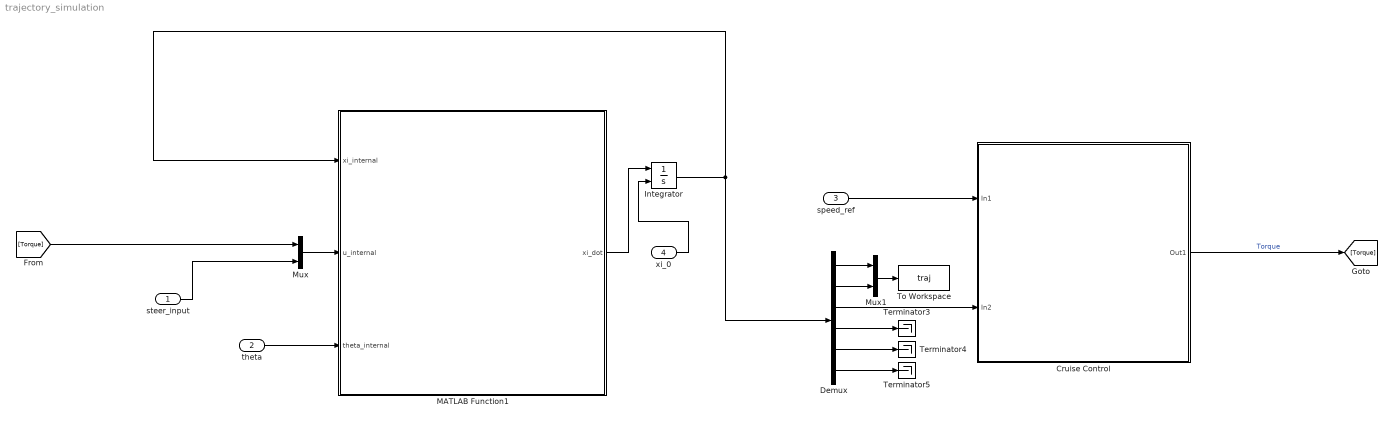
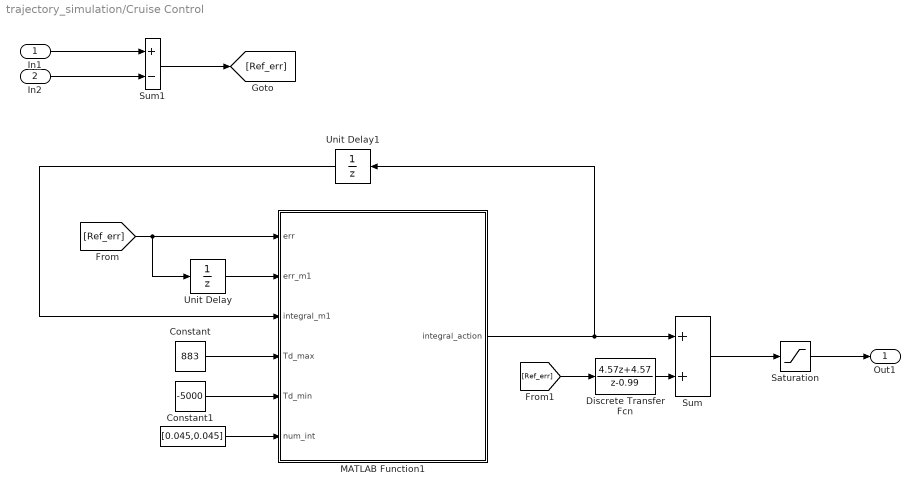
== matlab function trajectory_simulation/Cruise Control/MATLAB Function1 ==
function integral_action = integrator_anti_wu(err, err_m1, integral_m1, Td_max, Td_min, num_int)

integral_action = min(Td_max, max(Td_min, integral_m1+num_int'*[err;err_m1]));

== matlab function trajectory_simulation/MATLAB Function1 ==
function xi_dot = vehicle(xi_internal, u_internal, theta_internal)
% simulation, time has to be the fist input

%% Read states
X = xi_internal(1,1);
Y = xi_internal(2,1);
Ux = xi_internal(3,1);
beta = xi_internal(4,1);
psi = xi_internal(5,1);
r = xi_internal(6,1);

%% Read Inputs

Td_internal = u_internal(1,1);
delta_internal = u_internal(2,1);

%% Read Parameters

m = theta_internal(1,1);
Jz = theta_internal(2,1);
a = theta_internal(3,1);
b = theta_internal(4,1);
Cf = theta_internal(5,1);
Cr = theta_internal(6,1);
rw = theta_internal(7,1);
mu = theta_internal(8,1);
Af = theta_internal(9,1);
Al = theta_internal(10,1);
Cx = theta_internal(11,1);
Rr = theta_internal(12,1);
rho = theta_internal(13,1);
g = 9.81;

%% Equations

Uy = tan(beta)*Ux;
alfa_f = atan2((Uy + a*r),Ux) - delta_internal;
alfa_r = atan2((Uy - b*r),Ux);

F_z_f = m * g * b / (a+b);
F_z_r = m * g * a / (a+b);

z_f = tan(alfa_f);
z_r = tan(alfa_r);

elem1 = mu*F_z_f;
elem21 = - mu*F_z_f;
elem22 = - Cf*z_f + (Cf^2*abs(z_f)*z_f)/(3*mu*F_z_f) - (Cf^3*z_f^3)/(27*mu^2*F_z_f^2);
elem2 = max(elem21,elem22);
F_y_f = min(elem1, elem2);

elem1 = mu*F_z_r;
elem21 = - mu*F_z_r;
elem22 = - Cr*z_r + (Cr^2*abs(z_r)*z_r)/(3*mu*F_z_r) - (Cr^3*z_r^3)/(27*mu^2*F_z_r^2);
elem2 = max(elem21,elem22);
F_y_r = min(elem1,elem2);

F_x = Td_internal/rw;

F_r = Rr*Ux;
F_x_d = 0.5*rho*Af*Cx*Ux^2;

%% Output
xi_dot = zeros(6,1);
xi_dot(1,1) = Ux*cos(psi) - Uy*sin(psi);
xi_dot(2,1) = Ux*sin(psi)+ Uy*cos(psi);
xi_dot(3,1) = 1/m * ((F_x - F_y_f*sin(delta_internal))-F_r-F_x_d);
xi_dot(4,1) = 1/(m*Ux) * (F_y_f*cos(delta_internal)+F_y_r) - r;
xi_dot(5,1) = r;
xi_dot(6,1) = 1/Jz * (a*F_y_f*cos(delta_internal) - b* F_y_r);
% Forces = zeros(3,1);
% Forces(1,1) = F_y_f;
% Forces(2,1) = F_y_r;
% Forces(3,1) = F_x;

end

/*
 * Academic License - for use in teaching, academic research, and meeting
 * course requirements at degree granting institutions only.  Not for
 * government, commercial, or other organizational use.
 *
 * File: trajectory_simulation.c
 *
 * Code generated for Simulink model 'trajectory_simulation'.
 *
 * Model version                  : 1.48
 * Simulink Coder version         : 9.0 (R2018b) 24-May-2018
 * C/C++ source code generated on : Thu Aug 29 16:47:17 2019
 *
 * Target selection: ert.tlc
 * Embedded hardware selection: Intel->x86-64 (Windows64)
 * Code generation objectives:
 *    1. Execution efficiency
 *    2. RAM efficiency
 * Validation result: Not run
 */

#include "trajectory_simulation.h"
#define NumBitsPerChar                 8U

/* Private macros used by the generated code to access rtModel */
#ifndef rtmSetFirstInitCond
# define rtmSetFirstInitCond(rtm, val) ((rtm)->Timing.firstInitCondFlag = (val))
#endif

#ifndef rtmIsFirstInitCond
# define rtmIsFirstInitCond(rtm)       ((rtm)->Timing.firstInitCondFlag)
#endif

#ifndef rtmIsMajorTimeStep
# define rtmIsMajorTimeStep(rtm)       (((rtm)->Timing.simTimeStep) == MAJOR_TIME_STEP)
#endif

#ifndef rtmIsMinorTimeStep
# define rtmIsMinorTimeStep(rtm)       (((rtm)->Timing.simTimeStep) == MINOR_TIME_STEP)
#endif

#ifndef rtmSetTPtr
# define rtmSetTPtr(rtm, val)          ((rtm)->Timing.t = (val))
#endif

/* Continuous states */
X rtX;

/* Block signals and states (default storage) */
DW rtDW;

/* Real-time model */
RT_MODEL rtM_;
RT_MODEL *const rtM = &rtM_;
extern real_T rt_atan2d_snf(real_T u0, real_T u1);
extern real_T rt_powd_snf(real_T u0, real_T u1);

/* private model entry point functions */
extern void trajectory_simulation_derivatives(real_T arg_steer_input, real_T
  arg_theta[13], real_T arg_speed_ref, real_T arg_xi_0[6]);
extern real_T rtGetInf(void);
extern real32_T rtGetInfF(void);
extern real_T rtGetMinusInf(void);
extern real32_T rtGetMinusInfF(void);
extern real_T rtGetNaN(void);
extern real32_T rtGetNaNF(void);

/*===========*
 * Constants *
 *===========*/
#define RT_PI                          3.14159265358979323846
#define RT_PIF                         3.1415927F
#define RT_LN_10                       2.30258509299404568402
#define RT_LN_10F                      2.3025851F
#define RT_LOG10E                      0.43429448190325182765
#define RT_LOG10EF                     0.43429449F
#define RT_E                           2.7182818284590452354
#define RT_EF                          2.7182817F

/*
 * UNUSED_PARAMETER(x)
 *   Used to specify that a function parameter (argument) is required but not
 *   accessed by the function body.
 */
#ifndef UNUSED_PARAMETER
# if defined(__LCC__)
#   define UNUSED_PARAMETER(x)                                   /* do nothing */
# else

/*
 * This is the semi-ANSI standard way of indicating that an
 * unused function parameter is required.
 */
#   define UNUSED_PARAMETER(x)         (void) (x)
# endif
#endif

extern real_T rtInf;
extern real_T rtMinusInf;
extern real_T rtNaN;
extern real32_T rtInfF;
extern real32_T rtMinusInfF;
extern real32_T rtNaNF;
extern void rt_InitInfAndNaN(size_t realSize);
extern boolean_T rtIsInf(real_T value);
extern boolean_T rtIsInfF(real32_T value);
extern boolean_T rtIsNaN(real_T value);
extern boolean_T rtIsNaNF(real32_T value);
typedef struct {
  struct {
    uint32_T wordH;
    uint32_T wordL;
  } words;
} BigEndianIEEEDouble;

typedef struct {
  struct {
    uint32_T wordL;
    uint32_T wordH;
  } words;
} LittleEndianIEEEDouble;

typedef struct {
  union {
    real32_T wordLreal;
    uint32_T wordLuint;
  } wordL;
} IEEESingle;

real_T rtInf;
real_T rtMinusInf;
real_T rtNaN;
real32_T rtInfF;
real32_T rtMinusInfF;
real32_T rtNaNF;

/*
 * Initialize rtInf needed by the generated code.
 * Inf is initialized as non-signaling. Assumes IEEE.
 */
real_T rtGetInf(void)
{
  size_t bitsPerReal = sizeof(real_T) * (NumBitsPerChar);
  real_T inf = 0.0;
  if (bitsPerReal == 32U) {
    inf = rtGetInfF();
  } else {
    union {
      LittleEndianIEEEDouble bitVal;
      real_T fltVal;
    } tmpVal;

    tmpVal.bitVal.words.wordH = 0x7FF00000U;
    tmpVal.bitVal.words.wordL = 0x00000000U;
    inf = tmpVal.fltVal;
  }

  return inf;
}

/*
 * Initialize rtInfF needed by the generated code.
 * Inf is initialized as non-signaling. Assumes IEEE.
 */
real32_T rtGetInfF(void)
{
  IEEESingle infF;
  infF.wordL.wordLuint = 0x7F800000U;
  return infF.wordL.wordLreal;
}

/*
 * Initialize rtMinusInf needed by the generated code.
 * Inf is initialized as non-signaling. Assumes IEEE.
 */
real_T rtGetMinusInf(void)
{
  size_t bitsPerReal = sizeof(real_T) * (NumBitsPerChar);
  real_T minf = 0.0;
  if (bitsPerReal == 32U) {
    minf = rtGetMinusInfF();
  } else {
    union {
      LittleEndianIEEEDouble bitVal;
      real_T fltVal;
    } tmpVal;

    tmpVal.bitVal.words.wordH = 0xFFF00000U;
    tmpVal.bitVal.words.wordL = 0x00000000U;
    minf = tmpVal.fltVal;
  }

  return minf;
}

/*
 * Initialize rtMinusInfF needed by the generated code.
 * Inf is initialized as non-signaling. Assumes IEEE.
 */
real32_T rtGetMinusInfF(void)
{
  IEEESingle minfF;
  minfF.wordL.wordLuint = 0xFF800000U;
  return minfF.wordL.wordLreal;
}

/*
 * Initialize rtNaN needed by the generated code.
 * NaN is initialized as non-signaling. Assumes IEEE.
 */
real_T rtGetNaN(void)
{
  size_t bitsPerReal = sizeof(real_T) * (NumBitsPerChar);
  real_T nan = 0.0;
  if (bitsPerReal == 32U) {
    nan = rtGetNaNF();
  } else {
    union {
      LittleEndianIEEEDouble bitVal;
      real_T fltVal;
    } tmpVal;

    tmpVal.bitVal.words.wordH = 0xFFF80000U;
    tmpVal.bitVal.words.wordL = 0x00000000U;
    nan = tmpVal.fltVal;
  }

  return nan;
}

/*
 * Initialize rtNaNF needed by the generated code.
 * NaN is initialized as non-signaling. Assumes IEEE.
 */
real32_T rtGetNaNF(void)
{
  IEEESingle nanF = { { 0 } };

  nanF.wordL.wordLuint = 0xFFC00000U;
  return nanF.wordL.wordLreal;
}

/*
 * Initialize the rtInf, rtMinusInf, and rtNaN needed by the
 * generated code. NaN is initialized as non-signaling. Assumes IEEE.
 */
void rt_InitInfAndNaN(size_t realSize)
{
  (void) (realSize);
  rtNaN = rtGetNaN();
  rtNaNF = rtGetNaNF();
  rtInf = rtGetInf();
  rtInfF = rtGetInfF();
  rtMinusInf = rtGetMinusInf();
  rtMinusInfF = rtGetMinusInfF();
}

/* Test if value is infinite */
boolean_T rtIsInf(real_T value)
{
  return (boolean_T)((value==rtInf || value==rtMinusInf) ? 1U : 0U);
}

/* Test if single-precision value is infinite */
boolean_T rtIsInfF(real32_T value)
{
  return (boolean_T)(((value)==rtInfF || (value)==rtMinusInfF) ? 1U : 0U);
}

/* Test if value is not a number */
boolean_T rtIsNaN(real_T value)
{
  boolean_T result = (boolean_T) 0;
  size_t bitsPerReal = sizeof(real_T) * (NumBitsPerChar);
  if (bitsPerReal == 32U) {
    result = rtIsNaNF((real32_T)value);
  } else {
    union {
      LittleEndianIEEEDouble bitVal;
      real_T fltVal;
    } tmpVal;

    tmpVal.fltVal = value;
    result = (boolean_T)((tmpVal.bitVal.words.wordH & 0x7FF00000) == 0x7FF00000 &&
                         ( (tmpVal.bitVal.words.wordH & 0x000FFFFF) != 0 ||
                          (tmpVal.bitVal.words.wordL != 0) ));
  }

  return result;
}

/* Test if single-precision value is not a number */
boolean_T rtIsNaNF(real32_T value)
{
  IEEESingle tmp;
  tmp.wordL.wordLreal = value;
  return (boolean_T)( (tmp.wordL.wordLuint & 0x7F800000) == 0x7F800000 &&
                     (tmp.wordL.wordLuint & 0x007FFFFF) != 0 );
}

/*
 * This function updates continuous states using the ODE4 fixed-step
 * solver algorithm
 */
static void rt_ertODEUpdateContinuousStates(RTWSolverInfo *si , real_T
  arg_steer_input, real_T arg_theta[13], real_T arg_speed_ref, real_T arg_xi_0[6])
{
  time_T t = rtsiGetT(si);
  time_T tnew = rtsiGetSolverStopTime(si);
  time_T h = rtsiGetStepSize(si);
  real_T *x = rtsiGetContStates(si);
  ODE4_IntgData *id = (ODE4_IntgData *)rtsiGetSolverData(si);
  real_T *y = id->y;
  real_T *f0 = id->f[0];
  real_T *f1 = id->f[1];
  real_T *f2 = id->f[2];
  real_T *f3 = id->f[3];
  real_T temp;
  int_T i;
  int_T nXc = 6;
  rtsiSetSimTimeStep(si,MINOR_TIME_STEP);

  /* Save the state values at time t in y, we'll use x as ynew. */
  (void) memcpy(y, x,
                (uint_T)nXc*sizeof(real_T));

  /* Assumes that rtsiSetT and ModelOutputs are up-to-date */
  /* f0 = f(t,y) */
  rtsiSetdX(si, f0);
  trajectory_simulation_derivatives(arg_steer_input, arg_theta, arg_speed_ref,
    arg_xi_0);

  /* f1 = f(t + (h/2), y + (h/2)*f0) */
  temp = 0.5 * h;
  for (i = 0; i < nXc; i++) {
    x[i] = y[i] + (temp*f0[i]);
  }

  rtsiSetT(si, t + temp);
  rtsiSetdX(si, f1);
  trajectory_simulation_step(arg_steer_input, arg_theta, arg_speed_ref, arg_xi_0);
  trajectory_simulation_derivatives(arg_steer_input, arg_theta, arg_speed_ref,
    arg_xi_0);

  /* f2 = f(t + (h/2), y + (h/2)*f1) */
  for (i = 0; i < nXc; i++) {
    x[i] = y[i] + (temp*f1[i]);
  }

  rtsiSetdX(si, f2);
  trajectory_simulation_step(arg_steer_input, arg_theta, arg_speed_ref, arg_xi_0);
  trajectory_simulation_derivatives(arg_steer_input, arg_theta, arg_speed_ref,
    arg_xi_0);

  /* f3 = f(t + h, y + h*f2) */
  for (i = 0; i < nXc; i++) {
    x[i] = y[i] + (h*f2[i]);
  }

  rtsiSetT(si, tnew);
  rtsiSetdX(si, f3);
  trajectory_simulation_step(arg_steer_input, arg_theta, arg_speed_ref, arg_xi_0);
  trajectory_simulation_derivatives(arg_steer_input, arg_theta, arg_speed_ref,
    arg_xi_0);

  /* tnew = t + h
     ynew = y + (h/6)*(f0 + 2*f1 + 2*f2 + 2*f3) */
  temp = h / 6.0;
  for (i = 0; i < nXc; i++) {
    x[i] = y[i] + temp*(f0[i] + 2.0*f1[i] + 2.0*f2[i] + f3[i]);
  }

  rtsiSetSimTimeStep(si,MAJOR_TIME_STEP);
}

real_T rt_atan2d_snf(real_T u0, real_T u1)
{
  real_T y;
  int32_T u0_0;
  int32_T u1_0;
  if (rtIsNaN(u0) || rtIsNaN(u1)) {
    y = (rtNaN);
  } else if (rtIsInf(u0) && rtIsInf(u1)) {
    if (u0 > 0.0) {
      u0_0 = 1;
    } else {
      u0_0 = -1;
    }

    if (u1 > 0.0) {
      u1_0 = 1;
    } else {
      u1_0 = -1;
    }

    y = atan2(u0_0, u1_0);
  } else if (u1 == 0.0) {
    if (u0 > 0.0) {
      y = RT_PI / 2.0;
    } else if (u0 < 0.0) {
      y = -(RT_PI / 2.0);
    } else {
      y = 0.0;
    }
  } else {
    y = atan2(u0, u1);
  }

  return y;
}

real_T rt_powd_snf(real_T u0, real_T u1)
{
  real_T y;
  real_T tmp;
  real_T tmp_0;
  if (rtIsNaN(u0) || rtIsNaN(u1)) {
    y = (rtNaN);
  } else {
    tmp = fabs(u0);
    tmp_0 = fabs(u1);
    if (rtIsInf(u1)) {
      if (tmp == 1.0) {
        y = 1.0;
      } else if (tmp > 1.0) {
        if (u1 > 0.0) {
          y = (rtInf);
        } else {
          y = 0.0;
        }
      } else if (u1 > 0.0) {
        y = 0.0;
      } else {
        y = (rtInf);
      }
    } else if (tmp_0 == 0.0) {
      y = 1.0;
    } else if (tmp_0 == 1.0) {
      if (u1 > 0.0) {
        y = u0;
      } else {
        y = 1.0 / u0;
      }
    } else if (u1 == 2.0) {
      y = u0 * u0;
    } else if ((u1 == 0.5) && (u0 >= 0.0)) {
      y = sqrt(u0);
    } else if ((u0 < 0.0) && (u1 > floor(u1))) {
      y = (rtNaN);
    } else {
      y = pow(u0, u1);
    }
  }

  return y;
}

/* Model step function */
void trajectory_simulation_step(real_T arg_steer_input, real_T arg_theta[13],
  real_T arg_speed_ref, real_T arg_xi_0[6])
{
  real_T Uy;
  real_T F_z_f;
  real_T F_z_r;
  real_T z_f;
  real_T z_r;
  int32_T i;
  real_T u0;
  real_T F_z_f_tmp;
  if (rtmIsMajorTimeStep(rtM)) {
    /* set solver stop time */
    rtsiSetSolverStopTime(&rtM->solverInfo,((rtM->Timing.clockTick0+1)*
      rtM->Timing.stepSize0));
  }                                    /* end MajorTimeStep */

  /* Update absolute time of base rate at minor time step */
  if (rtmIsMinorTimeStep(rtM)) {
    rtM->Timing.t[0] = rtsiGetT(&rtM->solverInfo);
  }

  /* Integrator: '<Root>/Integrator' incorporates:
   *  Inport: '<Root>/xi_0'
   */
  if (rtDW.Integrator_IWORK != 0) {
    for (i = 0; i < 6; i++) {
      rtX.Integrator_CSTATE[i] = arg_xi_0[i];
    }
  }

  /* Sum: '<S1>/Sum1' incorporates:
   *  Inport: '<Root>/speed_ref'
   *  Integrator: '<Root>/Integrator'
   */
  rtDW.Sum1 = arg_speed_ref - rtX.Integrator_CSTATE[2];
  if (rtmIsMajorTimeStep(rtM)) {
    /* DiscreteTransferFcn: '<S1>/Discrete Transfer Fcn' */
    rtDW.DiscreteTransferFcn_tmp = rtDW.Sum1 - -0.99 *
      rtDW.DiscreteTransferFcn_states;
    rtDW.DiscreteTransferFcn = 4.57 * rtDW.DiscreteTransferFcn_tmp + 4.57 *
      rtDW.DiscreteTransferFcn_states;

    /* UnitDelay: '<S1>/Unit Delay' */
    rtDW.UnitDelay = rtDW.UnitDelay_DSTATE;

    /* UnitDelay: '<S1>/Unit Delay1' */
    rtDW.UnitDelay1 = rtDW.UnitDelay1_DSTATE;
  }

  /* MATLAB Function: '<S1>/MATLAB Function1' incorporates:
   *  Constant: '<S1>/Constant'
   *  Constant: '<S1>/Constant1'
   */
  rtDW.integral_action = fmin(883.0, fmax(-5000.0, (0.045 * rtDW.Sum1 + 0.045 *
    rtDW.UnitDelay) + rtDW.UnitDelay1));

  /* Sum: '<S1>/Sum' */
  u0 = rtDW.integral_action + rtDW.DiscreteTransferFcn;

  /* MATLAB Function: '<Root>/MATLAB Function1' incorporates:
   *  Inport: '<Root>/steer_input'
   *  Inport: '<Root>/theta'
   *  Integrator: '<Root>/Integrator'
   */
  Uy = tan(rtX.Integrator_CSTATE[3]) * rtX.Integrator_CSTATE[2];
  F_z_f_tmp = arg_theta[2] + arg_theta[3];
  F_z_f = arg_theta[0] * 9.81 * arg_theta[3] / F_z_f_tmp;
  F_z_r = arg_theta[0] * 9.81 * arg_theta[2] / F_z_f_tmp;
  z_f = tan(rt_atan2d_snf(arg_theta[2] * rtX.Integrator_CSTATE[5] + Uy,
             rtX.Integrator_CSTATE[2]) - arg_steer_input);
  z_r = tan(rt_atan2d_snf(Uy - arg_theta[3] * rtX.Integrator_CSTATE[5],
             rtX.Integrator_CSTATE[2]));
  F_z_f_tmp = arg_theta[7] * arg_theta[7] * 27.0;
  F_z_f = fmin(arg_theta[7] * F_z_f, fmax(-arg_theta[7] * F_z_f, (arg_theta[4] *
    arg_theta[4] * fabs(z_f) * z_f / (3.0 * arg_theta[7] * F_z_f) + -arg_theta[4]
    * z_f) - rt_powd_snf(arg_theta[4], 3.0) * rt_powd_snf(z_f, 3.0) / (F_z_f_tmp
    * (F_z_f * F_z_f))));
  F_z_r = fmin(arg_theta[7] * F_z_r, fmax(-arg_theta[7] * F_z_r, (arg_theta[5] *
    arg_theta[5] * fabs(z_r) * z_r / (3.0 * arg_theta[7] * F_z_r) + -arg_theta[5]
    * z_r) - rt_powd_snf(arg_theta[5], 3.0) * rt_powd_snf(z_r, 3.0) / (F_z_f_tmp
    * (F_z_r * F_z_r))));
  F_z_f_tmp = sin(rtX.Integrator_CSTATE[4]);
  z_f = cos(rtX.Integrator_CSTATE[4]);
  rtDW.xi_dot[0] = rtX.Integrator_CSTATE[2] * z_f - Uy * F_z_f_tmp;
  rtDW.xi_dot[1] = rtX.Integrator_CSTATE[2] * F_z_f_tmp + Uy * z_f;

  /* Saturate: '<S1>/Saturation' */
  if (u0 > 883.0) {
    u0 = 883.0;
  } else {
    if (u0 < -5000.0) {
      u0 = -5000.0;
    }
  }

  /* End of Saturate: '<S1>/Saturation' */

  /* MATLAB Function: '<Root>/MATLAB Function1' incorporates:
   *  Inport: '<Root>/steer_input'
   *  Inport: '<Root>/theta'
   *  Integrator: '<Root>/Integrator'
   */
  rtDW.xi_dot[2] = (((u0 / arg_theta[6] - F_z_f * sin(arg_steer_input)) -
                     arg_theta[11] * rtX.Integrator_CSTATE[2]) - 0.5 *
                    arg_theta[12] * arg_theta[8] * arg_theta[10] *
                    (rtX.Integrator_CSTATE[2] * rtX.Integrator_CSTATE[2])) *
    (1.0 / arg_theta[0]);
  F_z_f_tmp = cos(arg_steer_input);
  rtDW.xi_dot[3] = 1.0 / (arg_theta[0] * rtX.Integrator_CSTATE[2]) * (F_z_f *
    F_z_f_tmp + F_z_r) - rtX.Integrator_CSTATE[5];
  rtDW.xi_dot[4] = rtX.Integrator_CSTATE[5];
  rtDW.xi_dot[5] = (arg_theta[2] * F_z_f * F_z_f_tmp - arg_theta[3] * F_z_r) *
    (1.0 / arg_theta[1]);
  if (rtmIsMajorTimeStep(rtM)) {
    /* Update for Integrator: '<Root>/Integrator' */
    rtDW.Integrator_IWORK = 0;
    if (rtmIsMajorTimeStep(rtM)) {
      /* Update for DiscreteTransferFcn: '<S1>/Discrete Transfer Fcn' */
      rtDW.DiscreteTransferFcn_states = rtDW.DiscreteTransferFcn_tmp;

      /* Update for UnitDelay: '<S1>/Unit Delay' */
      rtDW.UnitDelay_DSTATE = rtDW.Sum1;

      /* Update for UnitDelay: '<S1>/Unit Delay1' */
      rtDW.UnitDelay1_DSTATE = rtDW.integral_action;
    }
  }                                    /* end MajorTimeStep */

  if (rtmIsMajorTimeStep(rtM)) {
    rt_ertODEUpdateContinuousStates(&rtM->solverInfo, arg_steer_input, arg_theta,
      arg_speed_ref, arg_xi_0);

    /* Update absolute time for base rate */
    /* The "clockTick0" counts the number of times the code of this task has
     * been executed. The absolute time is the multiplication of "clockTick0"
     * and "Timing.stepSize0". Size of "clockTick0" ensures timer will not
     * overflow during the application lifespan selected.
     */
    ++rtM->Timing.clockTick0;
    rtM->Timing.t[0] = rtsiGetSolverStopTime(&rtM->solverInfo);

    {
      /* Update absolute timer for sample time: [0.0001s, 0.0s] */
      /* The "clockTick1" counts the number of times the code of this task has
       * been executed. The resolution of this integer timer is 0.0001, which is the step size
       * of the task. Size of "clockTick1" ensures timer will not overflow during the
       * application lifespan selected.
       */
      rtM->Timing.clockTick1++;
    }
  }                                    /* end MajorTimeStep */
}
